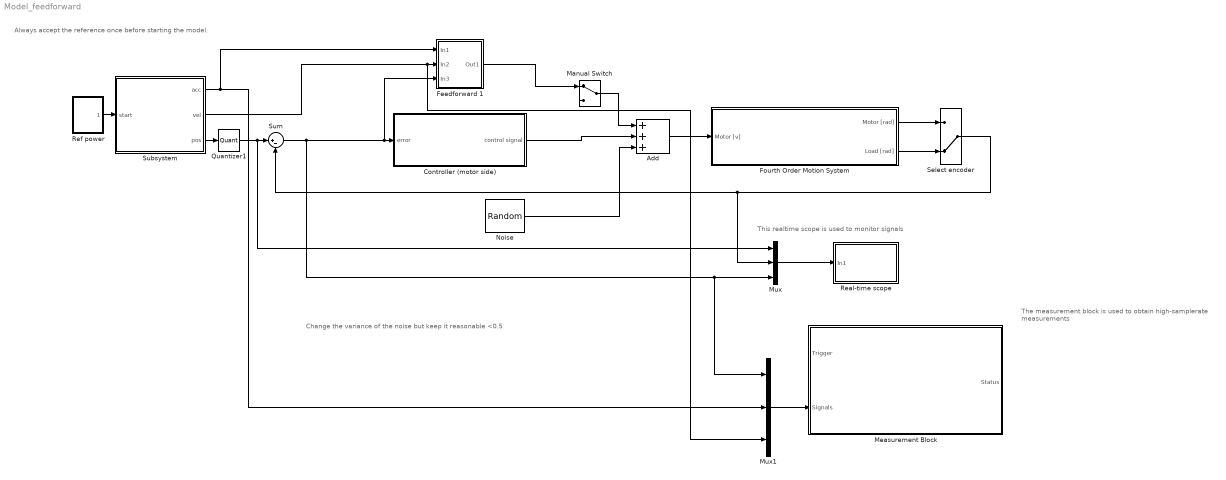
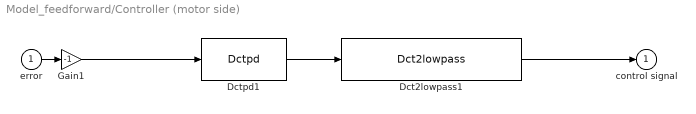
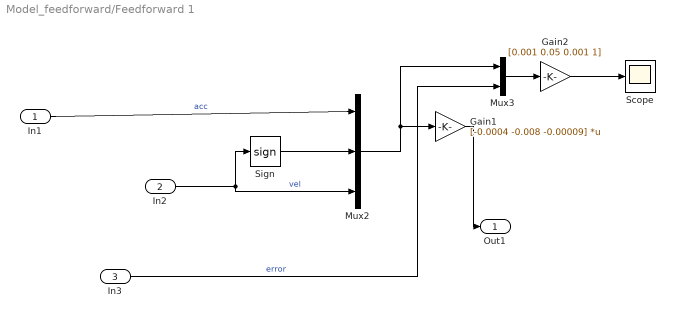
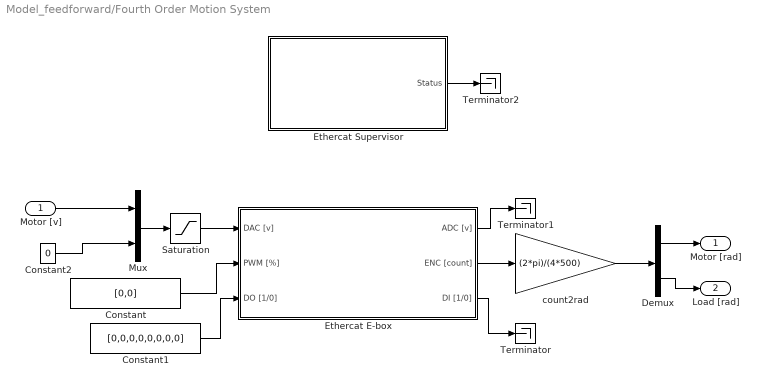
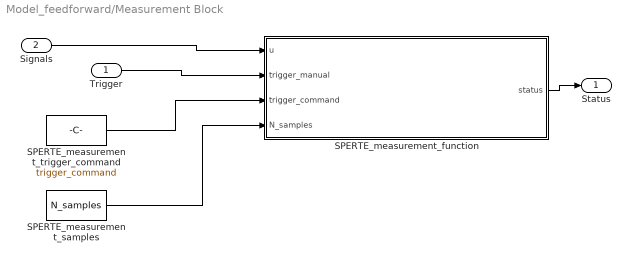
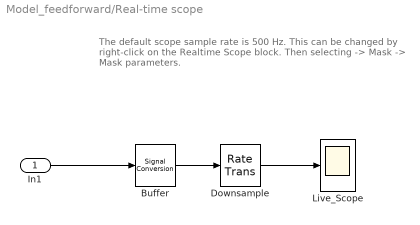
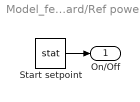
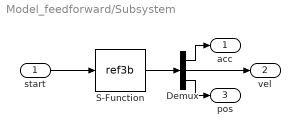
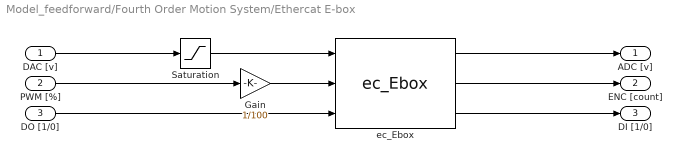
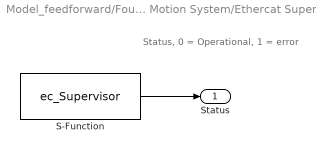
== matlab function Model_feedforward/Measurement Block/SPERTE_measurement_function ==
function status = perform_measurement(u, trigger_manual, trigger_command, triggertype, N_samples)

%% Persistent variables
persistent fileID NF busy NS

% Init parameters
if isempty(NF)
    NF = int16(0);
end
if isempty(NS)
    NS = uint32(0);
end
if isempty(fileID)
    fileID = 0;
end
if isempty(busy)
    busy = uint8(0);
end

%% Check the triggers
if ( (triggertype == 0 && trigger_manual == 1) || (triggertype == 1 && trigger_command == 1) || (triggertype == 2 && (trigger_command == 1 || trigger_manual == 1) ) )
    if busy == 1
        % We are already busy, nothing to do
    else
        % We should start a new one
        fileID = fopen(sprintf('measurement_%d.bin',NF),'w');  
        NF = NF + 1;
        busy = uint8(1);
        NS = uint32(0);
    end
end

% We have started a measurement
if busy == 1
    if NS < N_samples 
        % Here we write the sample, in single precision float
        fwrite(fileID,u,'single');
        NS = NS + uint32(1);
    else
       % We have N samples already, we are done
       fclose(fileID);
       busy = uint8(0);
       NS = uint32(0);
    end
      
end
    % Output state
    status = uint8(busy);
end

/*
 * Model_feedforward.c
 *
 * Academic License - for use in teaching, academic research, and meeting
 * course requirements at degree granting institutions only.  Not for
 * government, commercial, or other organizational use.
 *
 * Code generation for model "Model_feedforward".
 *
 * Model version              : 9.12
 * Simulink Coder version : 9.8 (R2022b) 13-May-2022
 * C source code generated on : Mon Mar 17 15:59:14 2025
 *
 * Target selection: ert.tlc
 * Note: GRT includes extra infrastructure and instrumentation for prototyping
 * Embedded hardware selection: ARM Compatible->ARM Cortex
 * Code generation objectives: Unspecified
 * Validation result: Not run
 */

#include "Model_feedforward.h"
#include "Model_feedforward_types.h"
#include "rtwtypes.h"
#include <string.h>
#include <math.h>
#include "rt_nonfinite.h"
#include "Model_feedforward_private.h"
#include <stdio.h>
#include <stddef.h>
#include <stdlib.h>
#include "Model_feedforward_dt.h"

/* Block signals (default storage) */
B_Model_feedforward_T Model_feedforward_B;

/* Block states (default storage) */
DW_Model_feedforward_T Model_feedforward_DW;

/* Real-time model */
static RT_MODEL_Model_feedforward_T Model_feedforward_M_;
RT_MODEL_Model_feedforward_T *const Model_feedforward_M = &Model_feedforward_M_;

/* Forward declaration for local functions */
static void Model_feedforwar_emxInit_char_T(emxArray_char_T_Model_feedfor_T
  **pEmxArray, int32_T numDimensions);
static void Model__emxEnsureCapacity_char_T(emxArray_char_T_Model_feedfor_T
  *emxArray, int32_T oldNumel);
static void Model_feedforwar_emxFree_char_T(emxArray_char_T_Model_feedfor_T
  **pEmxArray);
static int8_T Model_feedforward_filedata(void);
static int8_T Model_feedforward_cfopen(const emxArray_char_T_Model_feedfor_T
  *cfilename, const char_T *cpermission);
static int32_T Model_feedforward_cfclose(real_T fid);
real_T rt_urand_Upu32_Yd_f_pw_snf(uint32_T *u)
{
  uint32_T hi;
  uint32_T lo;

  /* Uniform random number generator (random number between 0 and 1)

     #define IA      16807                      magic multiplier = 7^5
     #define IM      2147483647                 modulus = 2^31-1
     #define IQ      127773                     IM div IA
     #define IR      2836                       IM modulo IA
     #define S       4.656612875245797e-10      reciprocal of 2^31-1
     test = IA * (seed % IQ) - IR * (seed/IQ)
     seed = test < 0 ? (test + IM) : test
     return (seed*S)
   */
  lo = *u % 127773U * 16807U;
  hi = *u / 127773U * 2836U;
  if (lo < hi) {
    *u = 2147483647U - (hi - lo);
  } else {
    *u = lo - hi;
  }

  return (real_T)*u * 4.6566128752457969E-10;
}

real_T rt_nrand_Upu32_Yd_f_pw_snf(uint32_T *u)
{
  real_T si;
  real_T sr;
  real_T y;

  /* Normal (Gaussian) random number generator */
  do {
    sr = 2.0 * rt_urand_Upu32_Yd_f_pw_snf(u) - 1.0;
    si = 2.0 * rt_urand_Upu32_Yd_f_pw_snf(u) - 1.0;
    si = sr * sr + si * si;
  } while (si > 1.0);

  y = sqrt(-2.0 * log(si) / si) * sr;
  return y;
}

real_T rt_roundd_snf(real_T u)
{
  real_T y;
  if (fabs(u) < 4.503599627370496E+15) {
    if (u >= 0.5) {
      y = floor(u + 0.5);
    } else if (u > -0.5) {
      y = u * 0.0;
    } else {
      y = ceil(u - 0.5);
    }
  } else {
    y = u;
  }

  return y;
}

static void Model_feedforwar_emxInit_char_T(emxArray_char_T_Model_feedfor_T
  **pEmxArray, int32_T numDimensions)
{
  emxArray_char_T_Model_feedfor_T *emxArray;
  int32_T i;
  *pEmxArray = (emxArray_char_T_Model_feedfor_T *)malloc(sizeof
    (emxArray_char_T_Model_feedfor_T));
  emxArray = *pEmxArray;
  emxArray->data = (char_T *)NULL;
  emxArray->numDimensions = numDimensions;
  emxArray->size = (int32_T *)malloc(sizeof(int32_T) * (uint32_T)numDimensions);
  emxArray->allocatedSize = 0;
  emxArray->canFreeData = true;
  for (i = 0; i < numDimensions; i++) {
    emxArray->size[i] = 0;
  }
}

static void Model__emxEnsureCapacity_char_T(emxArray_char_T_Model_feedfor_T
  *emxArray, int32_T oldNumel)
{
  int32_T i;
  int32_T newNumel;
  void *newData;
  if (oldNumel < 0) {
    oldNumel = 0;
  }

  newNumel = 1;
  for (i = 0; i < emxArray->numDimensions; i++) {
    newNumel *= emxArray->size[i];
  }

  if (newNumel > emxArray->allocatedSize) {
    i = emxArray->allocatedSize;
    if (i < 16) {
      i = 16;
    }

    while (i < newNumel) {
      if (i > 1073741823) {
        i = MAX_int32_T;
      } else {
        i <<= 1;
      }
    }

    newData = calloc((uint32_T)i, sizeof(char_T));
    if (emxArray->data != NULL) {
      memcpy(newData, emxArray->data, sizeof(char_T) * (uint32_T)oldNumel);
      if (emxArray->canFreeData) {
        free(emxArray->data);
      }
    }

    emxArray->data = (char_T *)newData;
    emxArray->allocatedSize = i;
    emxArray->canFreeData = true;
  }
}

static void Model_feedforwar_emxFree_char_T(emxArray_char_T_Model_feedfor_T
  **pEmxArray)
{
  if (*pEmxArray != (emxArray_char_T_Model_feedfor_T *)NULL) {
    if (((*pEmxArray)->data != (char_T *)NULL) && (*pEmxArray)->canFreeData) {
      free((*pEmxArray)->data);
    }

    free((*pEmxArray)->size);
    free(*pEmxArray);
    *pEmxArray = (emxArray_char_T_Model_feedfor_T *)NULL;
  }
}

/* Function for MATLAB Function: '<S4>/SPERTE_measurement_function' */
static int8_T Model_feedforward_filedata(void)
{
  int32_T k;
  int8_T f;
  boolean_T exitg1;
  f = 0;
  k = 1;
  exitg1 = false;
  while ((!exitg1) && (k - 1 < 20)) {
    if (Model_feedforward_DW.eml_openfiles[(int8_T)k - 1] == NULL) {
      f = (int8_T)k;
      exitg1 = true;
    } else {
      k++;
    }
  }

  return f;
}

/* Function for MATLAB Function: '<S4>/SPERTE_measurement_function' */
static int8_T Model_feedforward_cfopen(const emxArray_char_T_Model_feedfor_T
  *cfilename, const char_T *cpermission)
{
  emxArray_char_T_Model_feedfor_T *ccfilename;
  int32_T loop_ub;
  int8_T fileid;
  int8_T j;
  fileid = -1;
  j = Model_feedforward_filedata();
  if (j >= 1) {
    Model_feedforwar_emxInit_char_T(&ccfilename, 2);
    loop_ub = ccfilename->size[0] * ccfilename->size[1];
    ccfilename->size[0] = 1;
    ccfilename->size[1] = cfilename->size[1] + 1;
    Model__emxEnsureCapacity_char_T(ccfilename, loop_ub);
    loop_ub = cfilename->size[1];
    if (loop_ub - 1 >= 0) {
      memcpy(&ccfilename->data[0], &cfilename->data[0], (uint32_T)loop_ub *
             sizeof(char_T));
    }

    ccfilename->data[cfilename->size[1]] = '\x00';
    Model_feedforward_B.filestar_m = fopen(&ccfilename->data[0], cpermission);
    Model_feedforwar_emxFree_char_T(&ccfilename);
    if (Model_feedforward_B.filestar_m != NULL) {
      Model_feedforward_DW.eml_openfiles[j - 1] = Model_feedforward_B.filestar_m;
      Model_feedforward_DW.eml_autoflush[j - 1] = true;
      loop_ub = j + 2;
      if (j + 2 > 127) {
        loop_ub = 127;
      }

      fileid = (int8_T)loop_ub;
    }
  }

  return fileid;
}

/* Function for MATLAB Function: '<S4>/SPERTE_measurement_function' */
static int32_T Model_feedforward_cfclose(real_T fid)
{
  FILE* filestar;
  int32_T cst;
  int32_T st;
  int8_T b_fileid;
  int8_T fileid;
  st = -1;
  fileid = (int8_T)fid;
  if (((int8_T)fid < 0) || (fid != (int8_T)fid)) {
    fileid = -1;
  }

  b_fileid = fileid;
  if (fileid < 0) {
    b_fileid = -1;
  }

  if (b_fileid >= 3) {
    filestar = Model_feedforward_DW.eml_openfiles[b_fileid - 3];
  } else if (b_fileid == 0) {
    filestar = stdin;
  } else if (b_fileid == 1) {
    filestar = stdout;
  } else if (b_fileid == 2) {
    filestar = stderr;
  } else {
    filestar = NULL;
  }

  if ((filestar != NULL) && (fileid >= 3)) {
    cst = fclose(filestar);
    if (cst == 0) {
      st = 0;
      Model_feedforward_DW.eml_openfiles[fileid - 3] = NULL;
      Model_feedforward_DW.eml_autoflush[fileid - 3] = true;
    }
  }

  return st;
}

/* Model step function */
void Model_feedforward_step(void)
{
  emxArray_char_T_Model_feedfor_T *str;
  emxArray_char_T_Model_feedfor_T *str_0;
  int32_T i;
  int32_T tmp;
  uint32_T qY;
  int8_T b_fileid;
  boolean_T autoflush;

  /* Constant: '<S5>/Start setpoint' */
  Model_feedforward_B.Startsetpoint = Model_feedforward_P.Refpower_stat;

  /* S-Function (ref3b): '<S6>/S-Function' */

  /* Level2 S-Function Block: '<S6>/S-Function' (ref3b) */
  {
    SimStruct *rts = Model_feedforward_M->childSfunctions[0];
    sfcnOutputs(rts,0);
  }

  /* Signum: '<S2>/Sign' */
  if (rtIsNaN(Model_feedforward_B.SFunction[1])) {
    Model_feedforward_B.Sign = (rtNaN);
  } else if (Model_feedforward_B.SFunction[1] < 0.0) {
    Model_feedforward_B.Sign = -1.0;
  } else {
    Model_feedforward_B.Sign = (Model_feedforward_B.SFunction[1] > 0.0);
  }

  /* End of Signum: '<S2>/Sign' */

  /* ManualSwitch: '<Root>/Manual Switch' incorporates:
   *  Gain: '<S2>/Gain1'
   *  SignalConversion generated from: '<S2>/Gain1'
   */
  if (Model_feedforward_P.ManualSwitch_CurrentSetting == 1) {
    Model_feedforward_B.Add = (Model_feedforward_P.Gain1_Gain[0] *
      Model_feedforward_B.SFunction[0] + Model_feedforward_P.Gain1_Gain[1] *
      Model_feedforward_B.Sign) + Model_feedforward_B.SFunction[1] *
      Model_feedforward_P.Gain1_Gain[2];
  } else {
    Model_feedforward_B.Add = 0.0;
  }

  /* End of ManualSwitch: '<Root>/Manual Switch' */

  /* S-Function (ec_Supervisor): '<S9>/S-Function' */

  /* Level2 S-Function Block: '<S9>/S-Function' (ec_Supervisor) */
  {
    SimStruct *rts = Model_feedforward_M->childSfunctions[1];
    sfcnOutputs(rts,0);
  }

  /* S-Function (ec_Ebox): '<S8>/ec_Ebox' */

  /* Level2 S-Function Block: '<S8>/ec_Ebox' (ec_Ebox) */
  {
    SimStruct *rts = Model_feedforward_M->childSfunctions[2];
    sfcnOutputs(rts,0);
  }

  /* ManualSwitch: '<Root>/Select encoder' incorporates:
   *  Gain: '<S3>/count2rad'
   */
  if (Model_feedforward_P.Selectencoder_CurrentSetting == 1) {
    Model_feedforward_B.e = Model_feedforward_P.count2rad_Gain *
      Model_feedforward_B.ec_Ebox_o2[0];
  } else {
    Model_feedforward_B.e = Model_feedforward_P.count2rad_Gain *
      Model_feedforward_B.ec_Ebox_o2[1];
  }

  /* Sum: '<Root>/Sum' incorporates:
   *  ManualSwitch: '<Root>/Select encoder'
   *  Quantizer: '<Root>/Quantizer1'
   */
  Model_feedforward_B.e = rt_roundd_snf(Model_feedforward_B.SFunction[2] /
    Model_feedforward_P.Quantizer1_Interval) *
    Model_feedforward_P.Quantizer1_Interval - Model_feedforward_B.e;

  /* Gain: '<S7>/Gain1' */
  Model_feedforward_B.Gain1 = Model_feedforward_P.Gain1_Gain_l *
    Model_feedforward_B.e;

  /* S-Function (dpd): '<S7>/Dctpd2' */

  /* Level2 S-Function Block: '<S7>/Dctpd2' (dpd) */
  {
    SimStruct *rts = Model_feedforward_M->childSfunctions[3];
    sfcnOutputs(rts,0);
  }

  /* S-Function (dlowpass2): '<S7>/Dct2lowpass3' */

  /* Level2 S-Function Block: '<S7>/Dct2lowpass3' (dlowpass2) */
  {
    SimStruct *rts = Model_feedforward_M->childSfunctions[4];
    sfcnOutputs(rts,0);
  }

  /* S-Function (dleadlag): '<S7>/Dctleadlag4' */

  /* Level2 S-Function Block: '<S7>/Dctleadlag4' (dleadlag) */
  {
    SimStruct *rts = Model_feedforward_M->childSfunctions[5];
    sfcnOutputs(rts,0);
  }

  /* S-Function (dnotch): '<S7>/Dctnotch5' */

  /* Level2 S-Function Block: '<S7>/Dctnotch5' (dnotch) */
  {
    SimStruct *rts = Model_feedforward_M->childSfunctions[6];
    sfcnOutputs(rts,0);
  }

  /* RandomNumber: '<Root>/Noise' */
  Model_feedforward_B.Noise = Model_feedforward_DW.NextOutput;

  /* Gain: '<S2>/Gain2' */
  Model_feedforward_B.Gain2[0] = Model_feedforward_P.Gain2_Gain[0] *
    Model_feedforward_B.SFunction[0];
  Model_feedforward_B.Gain2[1] = Model_feedforward_P.Gain2_Gain[1] *
    Model_feedforward_B.Sign;
  Model_feedforward_B.Gain2[2] = Model_feedforward_B.SFunction[1] *
    Model_feedforward_P.Gain2_Gain[2];
  Model_feedforward_B.Gain2[3] = Model_feedforward_P.Gain2_Gain[3] *
    Model_feedforward_B.e;

  /* Constant: '<S3>/Constant1' */
  memcpy(&Model_feedforward_B.Constant1[0],
         &Model_feedforward_P.Constant1_Value[0], sizeof(real_T) << 3U);

  /* Gain: '<S8>/Gain' incorporates:
   *  Constant: '<S3>/Constant'
   */
  Model_feedforward_B.Gain[0] = Model_feedforward_P.Gain_Gain *
    Model_feedforward_P.Constant_Value[0];
  Model_feedforward_B.Gain[1] = Model_feedforward_P.Gain_Gain *
    Model_feedforward_P.Constant_Value[1];

  /* Sum: '<Root>/Add' */
  Model_feedforward_B.Sign = (Model_feedforward_B.Add +
    Model_feedforward_B.Dctnotch5) + Model_feedforward_B.Noise;

  /* Saturate: '<S3>/Saturation' */
  if (Model_feedforward_B.Sign > Model_feedforward_P.Saturation_UpperSat) {
    Model_feedforward_B.Sign = Model_feedforward_P.Saturation_UpperSat;
  } else if (Model_feedforward_B.Sign < Model_feedforward_P.Saturation_LowerSat)
  {
    Model_feedforward_B.Sign = Model_feedforward_P.Saturation_LowerSat;
  }

  /* Saturate: '<S8>/Saturation' */
  if (Model_feedforward_B.Sign > Model_feedforward_P.Saturation_UpperSat_d) {
    /* Saturate: '<S8>/Saturation' */
    Model_feedforward_B.Saturation[0] =
      Model_feedforward_P.Saturation_UpperSat_d;
  } else if (Model_feedforward_B.Sign <
             Model_feedforward_P.Saturation_LowerSat_e) {
    /* Saturate: '<S8>/Saturation' */
    Model_feedforward_B.Saturation[0] =
      Model_feedforward_P.Saturation_LowerSat_e;
  } else {
    /* Saturate: '<S8>/Saturation' */
    Model_feedforward_B.Saturation[0] = Model_feedforward_B.Sign;
  }

  /* Saturate: '<S3>/Saturation' incorporates:
   *  Constant: '<S3>/Constant2'
   */
  if (Model_feedforward_P.Constant2_Value >
      Model_feedforward_P.Saturation_UpperSat) {
    Model_feedforward_B.Sign = Model_feedforward_P.Saturation_UpperSat;
  } else if (Model_feedforward_P.Constant2_Value <
             Model_feedforward_P.Saturation_LowerSat) {
    Model_feedforward_B.Sign = Model_feedforward_P.Saturation_LowerSat;
  } else {
    Model_feedforward_B.Sign = Model_feedforward_P.Constant2_Value;
  }

  /* Saturate: '<S8>/Saturation' */
  if (Model_feedforward_B.Sign > Model_feedforward_P.Saturation_UpperSat_d) {
    /* Saturate: '<S8>/Saturation' */
    Model_feedforward_B.Saturation[1] =
      Model_feedforward_P.Saturation_UpperSat_d;
  } else if (Model_feedforward_B.Sign <
             Model_feedforward_P.Saturation_LowerSat_e) {
    /* Saturate: '<S8>/Saturation' */
    Model_feedforward_B.Saturation[1] =
      Model_feedforward_P.Saturation_LowerSat_e;
  } else {
    /* Saturate: '<S8>/Saturation' */
    Model_feedforward_B.Saturation[1] = Model_feedforward_B.Sign;
  }

  /* MATLAB Function: '<S4>/SPERTE_measurement_function' incorporates:
   *  Constant: '<S4>/SPERTE_measurement_samples'
   *  Constant: '<S4>/SPERTE_measurement_trigger_command'
   *  SignalConversion generated from: '<S10>/ SFunction '
   */
  if ((((Model_feedforward_P.MeasurementBlock_triggertype == 1) &&
        (Model_feedforward_P.MeasurementBlock_trigger_comman == 1)) ||
       ((Model_feedforward_P.MeasurementBlock_triggertype == 2) &&
        (Model_feedforward_P.MeasurementBlock_trigger_comman == 1))) &&
      (Model_feedforward_DW.busy != 1)) {
    i = (int32_T)snprintf(NULL, 0, "measurement_%d.bin", Model_feedforward_DW.NF)
      + 1;
    Model_feedforwar_emxInit_char_T(&str, 2);
    tmp = str->size[0] * str->size[1];
    str->size[0] = 1;
    str->size[1] = i;
    Model__emxEnsureCapacity_char_T(str, tmp);
    snprintf(&str->data[0], (size_t)i, "measurement_%d.bin",
             Model_feedforward_DW.NF);
    if (i - 1 < 1) {
      i = -1;
    } else {
      i -= 2;
    }

    Model_feedforwar_emxInit_char_T(&str_0, 2);
    tmp = str_0->size[0] * str_0->size[1];
    str_0->size[0] = 1;
    str_0->size[1] = i + 1;
    Model__emxEnsureCapacity_char_T(str_0, tmp);
    if (i >= 0) {
      memcpy(&str_0->data[0], &str->data[0], (uint32_T)(i + 1) * sizeof(char_T));
    }

    Model_feedforwar_emxFree_char_T(&str);
    b_fileid = Model_feedforward_cfopen(str_0, "wb");
    Model_feedforwar_emxFree_char_T(&str_0);
    Model_feedforward_DW.fileID = b_fileid;
    i = Model_feedforward_DW.NF + 1;
    if (Model_feedforward_DW.NF + 1 > 32767) {
      i = 32767;
    }

    Model_feedforward_DW.NF = (int16_T)i;
    Model_feedforward_DW.busy = 1U;
    Model_feedforward_DW.NS = 0U;
  }

  if (Model_feedforward_DW.busy == 1) {
    if (Model_feedforward_DW.NS < Model_feedforward_P.MeasurementBlock_N_samples)
    {
      b_fileid = (int8_T)Model_feedforward_DW.fileID;
      if (((int8_T)Model_feedforward_DW.fileID < 0) ||
          (Model_feedforward_DW.fileID != (int8_T)Model_feedforward_DW.fileID))
      {
        b_fileid = -1;
      }

      if (b_fileid >= 3) {
        Model_feedforward_B.filestar =
          Model_feedforward_DW.eml_openfiles[b_fileid - 3];
        autoflush = Model_feedforward_DW.eml_autoflush[b_fileid - 3];
      } else if (b_fileid == 0) {
        Model_feedforward_B.filestar = stdin;
        autoflush = true;
      } else if (b_fileid == 1) {
        Model_feedforward_B.filestar = stdout;
        autoflush = true;
      } else if (b_fileid == 2) {
        Model_feedforward_B.filestar = stderr;
        autoflush = true;
      } else {
        Model_feedforward_B.filestar = NULL;
        autoflush = true;
      }

      if (!(Model_feedforward_DW.fileID != 0.0)) {
        Model_feedforward_B.filestar = NULL;
      }

      if (!(Model_feedforward_B.filestar == NULL)) {
        Model_feedforward_B.xout[0] = (real32_T)Model_feedforward_B.e;
        Model_feedforward_B.xout[1] = (real32_T)Model_feedforward_B.SFunction[0];
        Model_feedforward_B.xout[2] = (real32_T)Model_feedforward_B.SFunction[1];
        Model_feedforward_B.bytesOutSizet = fwrite(&Model_feedforward_B.xout[0],
          sizeof(real32_T), (size_t)3, Model_feedforward_B.filestar);
        if (((real_T)Model_feedforward_B.bytesOutSizet > 0.0) && autoflush) {
          fflush(Model_feedforward_B.filestar);
        }
      }

      qY = Model_feedforward_DW.NS + 1U;
      if (Model_feedforward_DW.NS + 1U < Model_feedforward_DW.NS) {
        qY = MAX_uint32_T;
      }

      Model_feedforward_DW.NS = qY;
    } else {
      Model_feedforward_cfclose(Model_feedforward_DW.fileID);
      Model_feedforward_DW.busy = 0U;
      Model_feedforward_DW.NS = 0U;
    }
  }

  /* End of MATLAB Function: '<S4>/SPERTE_measurement_function' */

  /* Update for RandomNumber: '<Root>/Noise' */
  Model_feedforward_DW.NextOutput = rt_nrand_Upu32_Yd_f_pw_snf
    (&Model_feedforward_DW.RandSeed) * Model_feedforward_P.Noise_StdDev +
    Model_feedforward_P.Noise_Mean;

  /* External mode */
  rtExtModeUploadCheckTrigger(2);

  {                                    /* Sample time: [0.0s, 0.0s] */
    rtExtModeUpload(0, (real_T)Model_feedforward_M->Timing.t[0]);
  }

  {                                    /* Sample time: [0.00025s, 0.0s] */
    rtExtModeUpload(1, (real_T)Model_feedforward_M->Timing.t[1]);
  }

  /* signal main to stop simulation */
  {                                    /* Sample time: [0.0s, 0.0s] */
    if ((rtmGetTFinal(Model_feedforward_M)!=-1) &&
        !((rtmGetTFinal(Model_feedforward_M)-Model_feedforward_M->Timing.t[0]) >
          Model_feedforward_M->Timing.t[0] * (DBL_EPSILON))) {
      rtmSetErrorStatus(Model_feedforward_M, "Simulation finished");
    }

    if (rtmGetStopRequested(Model_feedforward_M)) {
      rtmSetErrorStatus(Model_feedforward_M, "Simulation finished");
    }
  }

  /* Update absolute time for base rate */
  /* The "clockTick0" counts the number of times the code of this task has
   * been executed. The absolute time is the multiplication of "clockTick0"
   * and "Timing.stepSize0". Size of "clockTick0" ensures timer will not
   * overflow during the application lifespan selected.
   * Timer of this task consists of two 32 bit unsigned integers.
   * The two integers represent the low bits Timing.clockTick0 and the high bits
   * Timing.clockTickH0. When the low bit overflows to 0, the high bits increment.
   */
  if (!(++Model_feedforward_M->Timing.clockTick0)) {
    ++Model_feedforward_M->Timing.clockTickH0;
  }

  Model_feedforward_M->Timing.t[0] = Model_feedforward_M->Timing.clockTick0 *
    Model_feedforward_M->Timing.stepSize0 +
    Model_feedforward_M->Timing.clockTickH0 *
    Model_feedforward_M->Timing.stepSize0 * 4294967296.0;

  {
    /* Update absolute timer for sample time: [0.00025s, 0.0s] */
    /* The "clockTick1" counts the number of times the code of this task has
     * been executed. The absolute time is the multiplication of "clockTick1"
     * and "Timing.stepSize1". Size of "clockTick1" ensures timer will not
     * overflow during the application lifespan selected.
     * Timer of this task consists of two 32 bit unsigned integers.
     * The two integers represent the low bits Timing.clockTick1 and the high bits
     * Timing.clockTickH1. When the low bit overflows to 0, the high bits increment.
     */
    if (!(++Model_feedforward_M->Timing.clockTick1)) {
      ++Model_feedforward_M->Timing.clockTickH1;
    }

    Model_feedforward_M->Timing.t[1] = Model_feedforward_M->Timing.clockTick1 *
      Model_feedforward_M->Timing.stepSize1 +
      Model_feedforward_M->Timing.clockTickH1 *
      Model_feedforward_M->Timing.stepSize1 * 4294967296.0;
  }
}
